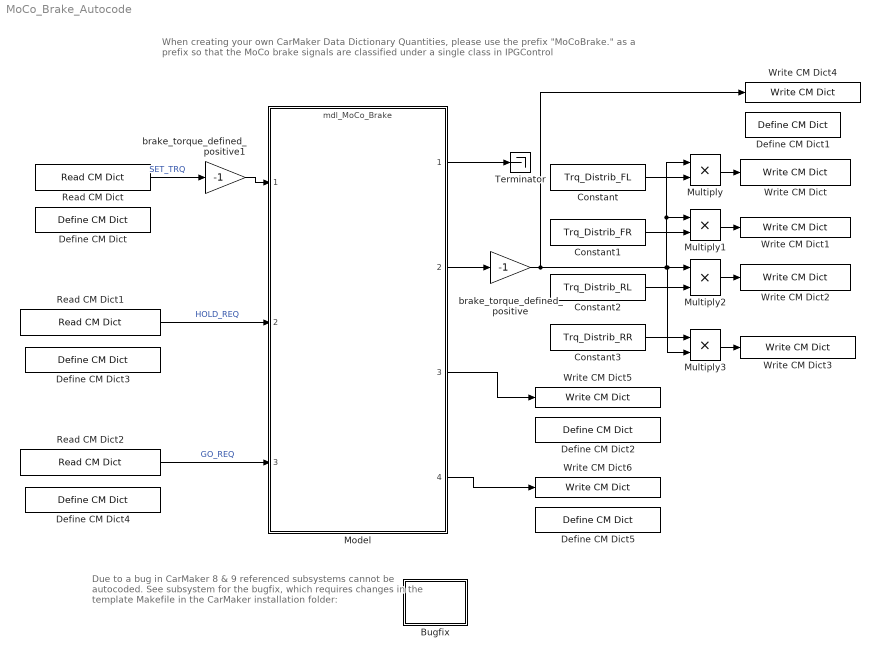
== system MoCo_Brake_Autocode/Bugfix ==
  note: 1) Open the following file with an editor: <IPGHOME>\carmaker\win64-8.1.1\Matlab\R2019b\CarMaker_unix-win64.tmf 2) Search this location (apporx line 71-74): OBJS = $(MODEL).o $(patsubst rt_malloc_main.o,,$(SRCS:.c=.o)) ifeq ($(MODELREF_TARGET_TYPE), NONE) OBJS += $(WRAPPER).o endif 3) Move '$(MODEL).o' in the if block: OBJS = $(patsubst rt_malloc_main.o,,$(SRCS:.c=.o)) ifeq ($(MODELREF_TARGET_TYPE), NONE) OBJS += $(MODEL).o $(WRAPPER).o endif If you want to use another CM or Matlab version, please take into account that you have to adjust the path in step 1)

/*
 * MoCo_Brake_Autocode.c
 *
 * Code generation for model "MoCo_Brake_Autocode".
 *
 * Model version              : 1.52
 * Simulink Coder version : 9.2 (R2019b) 18-Jul-2019
 * C source code generated on : Wed Jan 12 13:51:41 2022
 *
 * Target selection: CarMaker.tlc
 * Note: GRT includes extra infrastructure and instrumentation for prototyping
 * Embedded hardware selection: Intel->x86-64 (Windows64)
 * Code generation objectives: Unspecified
 * Validation result: Not run
 */

#include "MoCo_Brake_Autocode_capi.h"
#include <infoc.h>
#include <Log.h>
#include <InfoParam.h>
#include <DataDict.h>
#include <MatSupp.h>
#include "MoCo_Brake_Autocode.h"
#include "MoCo_Brake_Autocode_private.h"
#include "MoCo_Brake_Autocode_wrap.h"

/* CarMaker: Compile- and link-time checks for the right Matlab version. */
#if MATSUPP_NUMVER == 90700

/* The following statement will cause an "unresolved symbol" error when
   linking with a MatSupp library built for the wrong Matlab version. */
extern int MATSUPP_VARNAME(MatSupp, MATSUPP_NUMVER);
void *MATSUPP_VARNAME(MODEL, MATSUPP_NUMVER) = &MATSUPP_VARNAME(MatSupp,
  MATSUPP_NUMVER);

#else
# error Compiler options unsuitable for C code created with Matlab 9.7
#endif

/* Block parameters (default storage) */
P_MoCo_Brake_Autocode_T MoCo_Brake_Autocode_P = {
  /* Expression: -1
   * Referenced by: '<Root>/brake_torque_defined_positive1'
   */
  -1.0,

  /* Expression: -1
   * Referenced by: '<Root>/brake_torque_defined_positive'
   */
  -1.0
};

/*
 * This function updates continuous states using the ODE1 fixed-step
 * solver algorithm
 */
static void rt_ertODEUpdateContinuousStates(RTWSolverInfo *si ,
  RT_MODEL_MoCo_Brake_Autocode_T *const MoCo_Brake_Autocode_M)
{
  time_T tnew = rtsiGetSolverStopTime(si);
  time_T h = rtsiGetStepSize(si);
  real_T *x = rtsiGetContStates(si);
  ODE1_IntgData *id = (ODE1_IntgData *)rtsiGetSolverData(si);
  real_T *f0 = id->f[0];
  int_T i;
  int_T nXc = 7;
  rtsiSetSimTimeStep(si,MINOR_TIME_STEP);
  rtsiSetdX(si, f0);
  MoCo_Brake_Autocode_derivatives(MoCo_Brake_Autocode_M);
  rtsiSetT(si, tnew);
  for (i = 0; i < nXc; ++i) {
    x[i] += h * f0[i];
  }

  rtsiSetSimTimeStep(si,MAJOR_TIME_STEP);
}

/* Model step function */
void MoCo_Brake_Autocode_step(RT_MODEL_MoCo_Brake_Autocode_T *const
  MoCo_Brake_Autocode_M)
{
  B_MoCo_Brake_Autocode_T *MoCo_Brake_Autocode_B = ((B_MoCo_Brake_Autocode_T *)
    MoCo_Brake_Autocode_M->blockIO);
  DW_MoCo_Brake_Autocode_T *MoCo_Brake_Autocode_DW = ((DW_MoCo_Brake_Autocode_T *)
    MoCo_Brake_Autocode_M->dwork);
  X_MoCo_Brake_Autocode_T *MoCo_Brake_Autocode_X = ((X_MoCo_Brake_Autocode_T *)
    MoCo_Brake_Autocode_M->contStates);
  if (rtmIsMajorTimeStep(MoCo_Brake_Autocode_M)) {
    /* set solver stop time */
    if (!(MoCo_Brake_Autocode_M->Timing.clockTick0+1)) {
      rtsiSetSolverStopTime(MoCo_Brake_Autocode_M->solverInfo,
                            ((MoCo_Brake_Autocode_M->Timing.clockTickH0 + 1) *
        MoCo_Brake_Autocode_M->Timing.stepSize0 * 4294967296.0));
    } else {
      rtsiSetSolverStopTime(MoCo_Brake_Autocode_M->solverInfo,
                            ((MoCo_Brake_Autocode_M->Timing.clockTick0 + 1) *
        MoCo_Brake_Autocode_M->Timing.stepSize0 +
        MoCo_Brake_Autocode_M->Timing.clockTickH0 *
        MoCo_Brake_Autocode_M->Timing.stepSize0 * 4294967296.0));
    }
  }                                    /* end MajorTimeStep */

  /* Update absolute time of base rate at minor time step */
  if (rtmIsMinorTimeStep(MoCo_Brake_Autocode_M)) {
    MoCo_Brake_Autocode_M->Timing.t[0] = rtsiGetT
      (MoCo_Brake_Autocode_M->solverInfo);
  }

  if (rtmIsMajorTimeStep(MoCo_Brake_Autocode_M)) {
    /* S-Function (read_dict): '<Root>/Read CM Dict' */
    {
      tDDictEntry *e;
      e = (tDDictEntry *)MoCo_Brake_Autocode_DW->ReadCMDict_PWORK.Entry;
      if (!MoCo_Brake_Autocode_DW->ReadCMDict_IWORK.Checked) {
        MoCo_Brake_Autocode_DW->ReadCMDict_IWORK.Checked = 1;
        DDictErrorUponFakedEntry(e, "Model 'MoCo_Brake_Autocode'");
      }

      MoCo_Brake_Autocode_B->SET_TRQ = e->GetFunc(e->Var);
    }

    /* Gain: '<Root>/brake_torque_defined_positive1' */
    MoCo_Brake_Autocode_B->brake_torque_defined_positive1 =
      MoCo_Brake_Autocode_P.brake_torque_defined_positive1_Gain *
      MoCo_Brake_Autocode_B->SET_TRQ;

    /* S-Function (read_dict): '<Root>/Read CM Dict1' */
    {
      tDDictEntry *e;
      e = (tDDictEntry *)MoCo_Brake_Autocode_DW->ReadCMDict1_PWORK.Entry;
      if (!MoCo_Brake_Autocode_DW->ReadCMDict1_IWORK.Checked) {
        MoCo_Brake_Autocode_DW->ReadCMDict1_IWORK.Checked = 1;
        DDictErrorUponFakedEntry(e, "Model 'MoCo_Brake_Autocode'");
      }

      MoCo_Brake_Autocode_B->HOLD_REQ = e->GetFunc(e->Var);
    }

    /* S-Function (read_dict): '<Root>/Read CM Dict2' */
    {
      tDDictEntry *e;
      e = (tDDictEntry *)MoCo_Brake_Autocode_DW->ReadCMDict2_PWORK.Entry;
      if (!MoCo_Brake_Autocode_DW->ReadCMDict2_IWORK.Checked) {
        MoCo_Brake_Autocode_DW->ReadCMDict2_IWORK.Checked = 1;
        DDictErrorUponFakedEntry(e, "Model 'MoCo_Brake_Autocode'");
      }

      MoCo_Brake_Autocode_B->GO_REQ = e->GetFunc(e->Var);
    }
  }

  /* ModelReference: '<Root>/Model' */
  mdl_MoCo_Brake(&(MoCo_Brake_Autocode_DW->Model_InstanceData.rtm),
                 &MoCo_Brake_Autocode_B->brake_torque_defined_positive1,
                 &MoCo_Brake_Autocode_B->HOLD_REQ,
                 &MoCo_Brake_Autocode_B->GO_REQ,
                 &MoCo_Brake_Autocode_B->Model_o1,
                 &MoCo_Brake_Autocode_B->Model_o2,
                 &MoCo_Brake_Autocode_B->Model_o3,
                 &MoCo_Brake_Autocode_B->Model_o4,
                 &(MoCo_Brake_Autocode_DW->Model_InstanceData.rtb),
                 &(MoCo_Brake_Autocode_DW->Model_InstanceData.rtdw),
                 &(MoCo_Brake_Autocode_X->Model_CSTATE),
                 &(MoCo_Brake_Autocode_DW->Model_InstanceData.rtzce));
  if (rtmIsMajorTimeStep(MoCo_Brake_Autocode_M)) {
    /* Gain: '<Root>/brake_torque_defined_positive' */
    MoCo_Brake_Autocode_B->brake_torque_defined_positive =
      MoCo_Brake_Autocode_P.brake_torque_defined_positive_Gain *
      MoCo_Brake_Autocode_B->Model_o2;

    /* Product: '<Root>/Multiply' incorporates:
     *  Constant: '<Root>/Constant'
     */
    MoCo_Brake_Autocode_B->Multiply =
      MoCo_Brake_Autocode_B->brake_torque_defined_positive * rtP_Trq_Distrib_FL;

    /* S-Function (write_dict): '<Root>/Write CM Dict' */
    {
      tDDictEntry *e;
      real_T value;
      e = (tDDictEntry *)MoCo_Brake_Autocode_DW->WriteCMDict_PWORK.Entry;
      if (!MoCo_Brake_Autocode_DW->WriteCMDict_IWORK.Checked) {
        MoCo_Brake_Autocode_DW->WriteCMDict_IWORK.Checked = 1;
        DDictErrorUponFakedEntry(e, "Model 'MoCo_Brake_Autocode'");
      }

      value = MoCo_Brake_Autocode_B->Multiply;
      DVA_PokeSL(e, value);
    }

    /* Product: '<Root>/Multiply1' incorporates:
     *  Constant: '<Root>/Constant1'
     */
    MoCo_Brake_Autocode_B->Multiply1 =
      MoCo_Brake_Autocode_B->brake_torque_defined_positive * rtP_Trq_Distrib_FR;

    /* S-Function (write_dict): '<Root>/Write CM Dict1' */
    {
      tDDictEntry *e;
      real_T value;
      e = (tDDictEntry *)MoCo_Brake_Autocode_DW->WriteCMDict1_PWORK.Entry;
      if (!MoCo_Brake_Autocode_DW->WriteCMDict1_IWORK.Checked) {
        MoCo_Brake_Autocode_DW->WriteCMDict1_IWORK.Checked = 1;
        DDictErrorUponFakedEntry(e, "Model 'MoCo_Brake_Autocode'");
      }

      value = MoCo_Brake_Autocode_B->Multiply1;
      DVA_PokeSL(e, value);
    }

    /* Product: '<Root>/Multiply2' incorporates:
     *  Constant: '<Root>/Constant2'
     */
    MoCo_Brake_Autocode_B->Multiply2 =
      MoCo_Brake_Autocode_B->brake_torque_defined_positive * rtP_Trq_Distrib_RL;

    /* S-Function (write_dict): '<Root>/Write CM Dict2' */
    {
      tDDictEntry *e;
      real_T value;
      e = (tDDictEntry *)MoCo_Brake_Autocode_DW->WriteCMDict2_PWORK.Entry;
      if (!MoCo_Brake_Autocode_DW->WriteCMDict2_IWORK.Checked) {
        MoCo_Brake_Autocode_DW->WriteCMDict2_IWORK.Checked = 1;
        DDictErrorUponFakedEntry(e, "Model 'MoCo_Brake_Autocode'");
      }

      value = MoCo_Brake_Autocode_B->Multiply2;
      DVA_PokeSL(e, value);
    }

    /* Product: '<Root>/Multiply3' incorporates:
     *  Constant: '<Root>/Constant3'
     */
    MoCo_Brake_Autocode_B->Multiply3 = rtP_Trq_Distrib_RR *
      MoCo_Brake_Autocode_B->brake_torque_defined_positive;

    /* S-Function (write_dict): '<Root>/Write CM Dict3' */
    {
      tDDictEntry *e;
      real_T value;
      e = (tDDictEntry *)MoCo_Brake_Autocode_DW->WriteCMDict3_PWORK.Entry;
      if (!MoCo_Brake_Autocode_DW->WriteCMDict3_IWORK.Checked) {
        MoCo_Brake_Autocode_DW->WriteCMDict3_IWORK.Checked = 1;
        DDictErrorUponFakedEntry(e, "Model 'MoCo_Brake_Autocode'");
      }

      value = MoCo_Brake_Autocode_B->Multiply3;
      DVA_PokeSL(e, value);
    }

    /* S-Function (write_dict): '<Root>/Write CM Dict4' */
    {
      tDDictEntry *e;
      real_T value;
      e = (tDDictEntry *)MoCo_Brake_Autocode_DW->WriteCMDict4_PWORK.Entry;
      if (!MoCo_Brake_Autocode_DW->WriteCMDict4_IWORK.Checked) {
        MoCo_Brake_Autocode_DW->WriteCMDict4_IWORK.Checked = 1;
        DDictErrorUponFakedEntry(e, "Model 'MoCo_Brake_Autocode'");
      }

      value = MoCo_Brake_Autocode_B->brake_torque_defined_positive;
      DVA_PokeSL(e, value);
    }

    /* S-Function (write_dict): '<Root>/Write CM Dict5' */
    {
      tDDictEntry *e;
      real_T value;
      e = (tDDictEntry *)MoCo_Brake_Autocode_DW->WriteCMDict5_PWORK.Entry;
      if (!MoCo_Brake_Autocode_DW->WriteCMDict5_IWORK.Checked) {
        MoCo_Brake_Autocode_DW->WriteCMDict5_IWORK.Checked = 1;
        DDictErrorUponFakedEntry(e, "Model 'MoCo_Brake_Autocode'");
      }

      value = MoCo_Brake_Autocode_B->Model_o3;
      DVA_PokeSL(e, value);
    }

    /* S-Function (write_dict): '<Root>/Write CM Dict6' */
    {
      tDDictEntry *e;
      real_T value;
      e = (tDDictEntry *)MoCo_Brake_Autocode_DW->WriteCMDict6_PWORK.Entry;
      if (!MoCo_Brake_Autocode_DW->WriteCMDict6_IWORK.Checked) {
        MoCo_Brake_Autocode_DW->WriteCMDict6_IWORK.Checked = 1;
        DDictErrorUponFakedEntry(e, "Model 'MoCo_Brake_Autocode'");
      }

      value = MoCo_Brake_Autocode_B->Model_o4;
      DVA_PokeSL(e, value);
    }
  }

  if (rtmIsMajorTimeStep(MoCo_Brake_Autocode_M)) {
    /* Update for ModelReference: '<Root>/Model' */
    mdl_MoCo_Brake_Update(&(MoCo_Brake_Autocode_DW->Model_InstanceData.rtm),
                          &(MoCo_Brake_Autocode_DW->Model_InstanceData.rtb),
                          &(MoCo_Brake_Autocode_DW->Model_InstanceData.rtdw));
  }                                    /* end MajorTimeStep */

  if (rtmIsMajorTimeStep(MoCo_Brake_Autocode_M)) {
    rt_ertODEUpdateContinuousStates(MoCo_Brake_Autocode_M->solverInfo,
      MoCo_Brake_Autocode_M);

    /* Update absolute time for base rate */
    /* The "clockTick0" counts the number of times the code of this task has
     * been executed. The absolute time is the multiplication of "clockTick0"
     * and "Timing.stepSize0". Size of "clockTick0" ensures timer will not
     * overflow during the application lifespan selected.
     * Timer of this task consists of two 32 bit unsigned integers.
     * The two integers represent the low bits Timing.clockTick0 and the high bits
     * Timing.clockTickH0. When the low bit overflows to 0, the high bits increment.
     */
    if (!(++MoCo_Brake_Autocode_M->Timing.clockTick0)) {
      ++MoCo_Brake_Autocode_M->Timing.clockTickH0;
    }

    MoCo_Brake_Autocode_M->Timing.t[0] = rtsiGetSolverStopTime
      (MoCo_Brake_Autocode_M->solverInfo);

    {
      /* Update absolute timer for sample time: [0.001s, 0.0s] */
      /* The "clockTick1" counts the number of times the code of this task has
       * been executed. The resolution of this integer timer is 0.001, which is the step size
       * of the task. Size of "clockTick1" ensures timer will not overflow during the
       * application lifespan selected.
       * Timer of this task consists of two 32 bit unsigned integers.
       * The two integers represent the low bits Timing.clockTick1 and the high bits
       * Timing.clockTickH1. When the low bit overflows to 0, the high bits increment.
       */
      MoCo_Brake_Autocode_M->Timing.clockTick1++;
      if (!MoCo_Brake_Autocode_M->Timing.clockTick1) {
        MoCo_Brake_Autocode_M->Timing.clockTickH1++;
      }
    }
  }                                    /* end MajorTimeStep */
}
